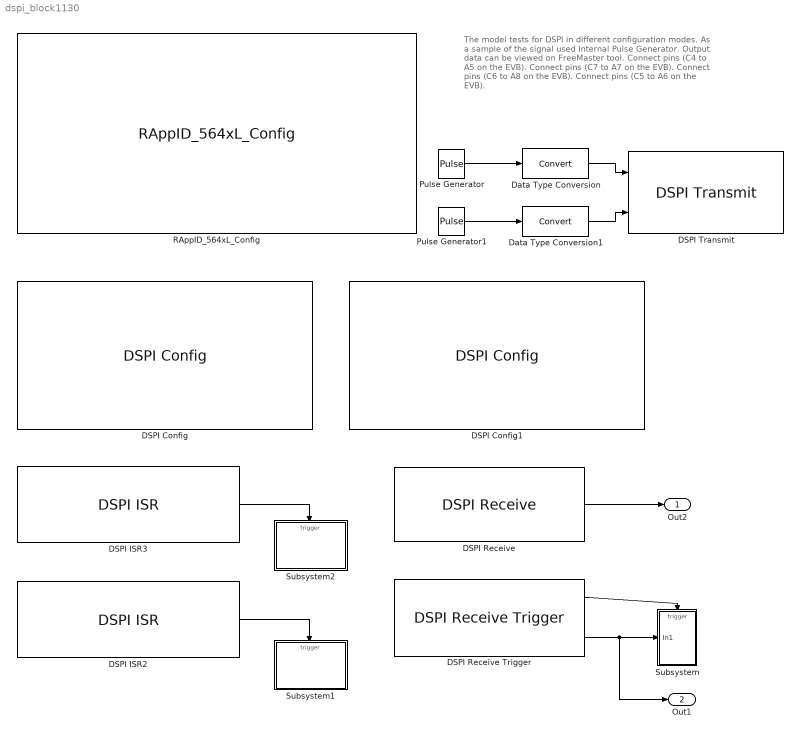
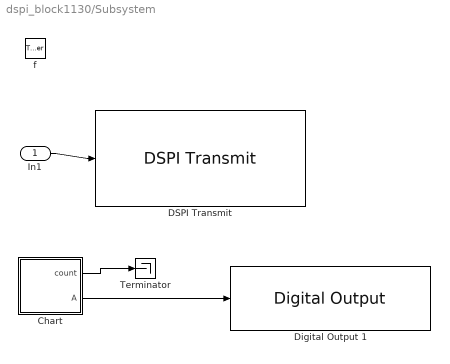
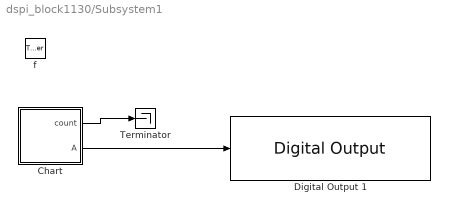
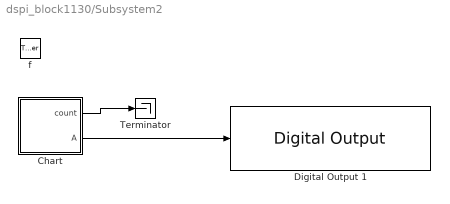
== stateflow chart Subsystem2/Chart ==
  state A
  state A1
  (default) -> A : {count =0;}
  A -> A1
  A1 -> A : { count = count + 1;}
  data: count output double; A output boolean

== stateflow chart Subsystem/Chart ==
  state A
  state A1
  (default) -> A : {count =0;}
  A -> A1
  A1 -> A : { count = count + 1;}
  data: count output double; A output boolean

== stateflow chart Subsystem1/Chart ==
  state A
  state A1
  (default) -> A : {count =0;}
  A -> A1
  A1 -> A : { count = count + 1;}
  data: count output double; A output boolean

/*
 * Sponsored License - for use in support of a program or activity
 * sponsored by MathWorks.  Not for government, commercial or other
 * non-sponsored organizational use.
 *
 * File: dspi_block1130.c
 *
 * Code generated for Simulink model 'dspi_block1130'.
 *
 * Model version                  : 1.97
 * Simulink Coder version         : 8.11 (R2016b) 25-Aug-2016
 * C/C++ source code generated on : Thu Dec 21 13:59:05 2017
 *
 * Target selection: rappid564xl.tlc
 * Embedded hardware selection: Freescale->32-bit PowerPC
 * Code generation objectives: Unspecified
 * Validation result: Not run
 */

#include "dspi_block1130.h"
#include "dspi_block1130_private.h"

/* Named constants for Chart: '<S2>/Chart' */
#define dspi_block1130_IN_A            ((uint8_T)1U)
#define dspi_block1130_IN_A1           ((uint8_T)2U)
#define dspi_block11_IN_NO_ACTIVE_CHILD ((uint8_T)0U)

/* Block signals (auto storage) */
BlockIO_dspi_block1130 dspi_block1130_B;

/* Block states (auto storage) */
D_Work_dspi_block1130 dspi_block1130_DWork;

/* External outputs (root outports fed by signals with auto storage) */
ExternalOutputs_dspi_block1130 dspi_block1130_Y;

/*
 * System initialize for atomic system:
 *    '<S2>/Chart'
 *    '<S3>/Chart'
 *    '<S1>/Chart'
 */
void dspi_block1130_Chart_Init(rtB_Chart_dspi_block1130 *localB,
  rtDW_Chart_dspi_block1130 *localDW)
{
  localDW->is_active_c5_dspi_block1130 = 0U;
  localDW->is_c5_dspi_block1130 = dspi_block11_IN_NO_ACTIVE_CHILD;
  localB->count = 0.0;
  localB->A = false;
}

/*
 * System reset for atomic system:
 *    '<S2>/Chart'
 *    '<S3>/Chart'
 *    '<S1>/Chart'
 */
void dspi_block1130_Chart_Reset(rtB_Chart_dspi_block1130 *localB,
  rtDW_Chart_dspi_block1130 *localDW)
{
  localDW->is_active_c5_dspi_block1130 = 0U;
  localDW->is_c5_dspi_block1130 = dspi_block11_IN_NO_ACTIVE_CHILD;
  localB->count = 0.0;
  localB->A = false;
}

/*
 * Output and update for atomic system:
 *    '<S2>/Chart'
 *    '<S3>/Chart'
 *    '<S1>/Chart'
 */
void dspi_block1130_Chart(rtB_Chart_dspi_block1130 *localB,
  rtDW_Chart_dspi_block1130 *localDW)
{
  /* Gateway: Subsystem1/Chart */
  /* During: Subsystem1/Chart */
  if (localDW->is_active_c5_dspi_block1130 == 0U) {
    /* Entry: Subsystem1/Chart */
    localDW->is_active_c5_dspi_block1130 = 1U;

    /* Entry Internal: Subsystem1/Chart */
    /* Transition: '<S5>:1' */
    localB->count = 0.0;
    localDW->is_c5_dspi_block1130 = dspi_block1130_IN_A;
    localB->A = true;
  } else if (localDW->is_c5_dspi_block1130 == dspi_block1130_IN_A) {
    /* During 'A': '<S5>:3' */
    /* Transition: '<S5>:7' */
    localB->A = false;
    localDW->is_c5_dspi_block1130 = dspi_block1130_IN_A1;
  } else {
    /* During 'A1': '<S5>:6' */
    /* Transition: '<S5>:8' */
    localB->count++;
    localDW->is_c5_dspi_block1130 = dspi_block1130_IN_A;
    localB->A = true;
  }
}

/* System initialize for function-call system: '<Root>/Subsystem1' */
void dspi_block1130_Subsystem1_Init(void)
{
  /* SystemInitialize for Chart: '<S2>/Chart' */
  dspi_block1130_Chart_Init(&dspi_block1130_B.sf_Chart,
    &dspi_block1130_DWork.sf_Chart);
}

/* System reset for function-call system: '<Root>/Subsystem1' */
void dspi_block1130_Subsystem1_Reset(void)
{
  /* SystemReset for Chart: '<S2>/Chart' */
  dspi_block1130_Chart_Reset(&dspi_block1130_B.sf_Chart,
    &dspi_block1130_DWork.sf_Chart);
}

/* Start for function-call system: '<Root>/Subsystem1' */
void dspi_block1130_Subsystem1_Start(void)
{
  /* Start for S-Function (gpio_564xl_output): '<S2>/Digital Output 1' */

  /* Initialize Pad Configuration Register 53 as Output */
  gpo_init_pcr_out_564xl_fnc( 53 );
}

/* Output and update for function-call system: '<Root>/Subsystem1' */
void dspi_block1130_Subsystem1(void)
{
  /* Chart: '<S2>/Chart' */
  dspi_block1130_Chart(&dspi_block1130_B.sf_Chart,
                       &dspi_block1130_DWork.sf_Chart);

  /* S-Function (gpio_564xl_output): '<S2>/Digital Output 1' */

  /* Pin Data Output Signal Update PCR[53]. */
  gpo_pin_update_564xl_fnc(53, dspi_block1130_B.sf_Chart.A);/* GPO Pin Data Output Register Update */
}

/* System initialize for function-call system: '<Root>/Subsystem2' */
void dspi_block1130_Subsystem2_Init(void)
{
  /* SystemInitialize for Chart: '<S3>/Chart' */
  dspi_block1130_Chart_Init(&dspi_block1130_B.sf_Chart_c,
    &dspi_block1130_DWork.sf_Chart_c);
}

/* System reset for function-call system: '<Root>/Subsystem2' */
void dspi_block1130_Subsystem2_Reset(void)
{
  /* SystemReset for Chart: '<S3>/Chart' */
  dspi_block1130_Chart_Reset(&dspi_block1130_B.sf_Chart_c,
    &dspi_block1130_DWork.sf_Chart_c);
}

/* Start for function-call system: '<Root>/Subsystem2' */
void dspi_block1130_Subsystem2_Start(void)
{
  /* Start for S-Function (gpio_564xl_output): '<S3>/Digital Output 1' */

  /* Initialize Pad Configuration Register 54 as Output */
  gpo_init_pcr_out_564xl_fnc( 54 );
}

/* Output and update for function-call system: '<Root>/Subsystem2' */
void dspi_block1130_Subsystem2(void)
{
  /* Chart: '<S3>/Chart' */
  dspi_block1130_Chart(&dspi_block1130_B.sf_Chart_c,
                       &dspi_block1130_DWork.sf_Chart_c);

  /* S-Function (gpio_564xl_output): '<S3>/Digital Output 1' */

  /* Pin Data Output Signal Update PCR[54]. */
  gpo_pin_update_564xl_fnc(54, dspi_block1130_B.sf_Chart_c.A);/* GPO Pin Data Output Register Update */
}

/* System initialize for function-call system: '<Root>/Subsystem' */
void dspi_block1130_Subsystem_Init(void)
{
  /* SystemInitialize for Chart: '<S1>/Chart' */
  dspi_block1130_Chart_Init(&dspi_block1130_B.sf_Chart_h,
    &dspi_block1130_DWork.sf_Chart_h);
}

/* System reset for function-call system: '<Root>/Subsystem' */
void dspi_block1130_Subsystem_Reset(void)
{
  /* SystemReset for Chart: '<S1>/Chart' */
  dspi_block1130_Chart_Reset(&dspi_block1130_B.sf_Chart_h,
    &dspi_block1130_DWork.sf_Chart_h);
}

/* Start for function-call system: '<Root>/Subsystem' */
void dspi_block1130_Subsystem_Start(void)
{
  /* Start for S-Function (dspi_564xl_transmit): '<S1>/DSPI Transmit' */
  dspi_564xl_pin_init(5, 0, 1);
  dspi_564xl_pin_init(8, 0, 1);
  dspi_564xl_pin_init(7, 1, 1);
  dspi_564xl_pin_init(6, 0, 1);

  /* Start for S-Function (gpio_564xl_output): '<S1>/Digital Output 1' */

  /* Initialize Pad Configuration Register 55 as Output */
  gpo_init_pcr_out_564xl_fnc( 55 );
}

/* Output and update for function-call system: '<Root>/Subsystem' */
void dspi_block1130_Subsystem(void)
{
  /* S-Function (dspi_564xl_transmit): '<S1>/DSPI Transmit' */
  {
    DSPI_PUSHR_32B_tag pushr;
    pushr.R = 0U;
    pushr.B.TXDATA = dspi_block1130_Y.Out1;
    pushr.R |= (uint32_t)1<<16;
    dspi_564xl_send(1,pushr);
  }

  /* Chart: '<S1>/Chart' */
  dspi_block1130_Chart(&dspi_block1130_B.sf_Chart_h,
                       &dspi_block1130_DWork.sf_Chart_h);

  /* S-Function (gpio_564xl_output): '<S1>/Digital Output 1' */

  /* Pin Data Output Signal Update PCR[55]. */
  gpo_pin_update_564xl_fnc(55, dspi_block1130_B.sf_Chart_h.A);/* GPO Pin Data Output Register Update */
}

/* Model step function */
void dspi_block1130_step(void)
{
  int32_T rtb_PulseGenerator1;

  /* DiscretePulseGenerator: '<Root>/Pulse Generator' */
  rtb_PulseGenerator1 = (dspi_block1130_DWork.clockTickCounter < 1) &&
    (dspi_block1130_DWork.clockTickCounter >= 0) ? 85 : 0;
  if (dspi_block1130_DWork.clockTickCounter >= 1) {
    dspi_block1130_DWork.clockTickCounter = 0;
  } else {
    dspi_block1130_DWork.clockTickCounter++;
  }

  /* End of DiscretePulseGenerator: '<Root>/Pulse Generator' */

  /* DataTypeConversion: '<Root>/Data Type Conversion' */
  dspi_block1130_B.DataTypeConversion = (uint16_T)(int32_T)fmod
    (rtb_PulseGenerator1, 65536.0);

  /* DiscretePulseGenerator: '<Root>/Pulse Generator1' */
  rtb_PulseGenerator1 = ((dspi_block1130_DWork.clockTickCounter_l < 3) &&
    (dspi_block1130_DWork.clockTickCounter_l >= 0));
  if (dspi_block1130_DWork.clockTickCounter_l >= 4) {
    dspi_block1130_DWork.clockTickCounter_l = 0;
  } else {
    dspi_block1130_DWork.clockTickCounter_l++;
  }

  /* End of DiscretePulseGenerator: '<Root>/Pulse Generator1' */

  /* DataTypeConversion: '<Root>/Data Type Conversion1' */
  dspi_block1130_B.DataTypeConversion1 = (rtb_PulseGenerator1 != 0);

  /* S-Function (dspi_564xl_transmit): '<Root>/DSPI Transmit' */
  {
    DSPI_PUSHR_32B_tag pushr;
    pushr.R = 0U;
    pushr.B.EOQ = (uint32_t)dspi_block1130_B.DataTypeConversion1;
    pushr.B.TXDATA = dspi_block1130_B.DataTypeConversion;
    pushr.R |= (uint32_t)1<<16;
    dspi_564xl_send(0,pushr);
  }

  /* S-Function (dspi_564xl_receive): '<Root>/DSPI Receive' */

  /* DSPI Data read DSPI: 1 Mode: slave  */
  dspi_block1130_Y.Out2 = dspi_564xl_read_slave( 0);
}
